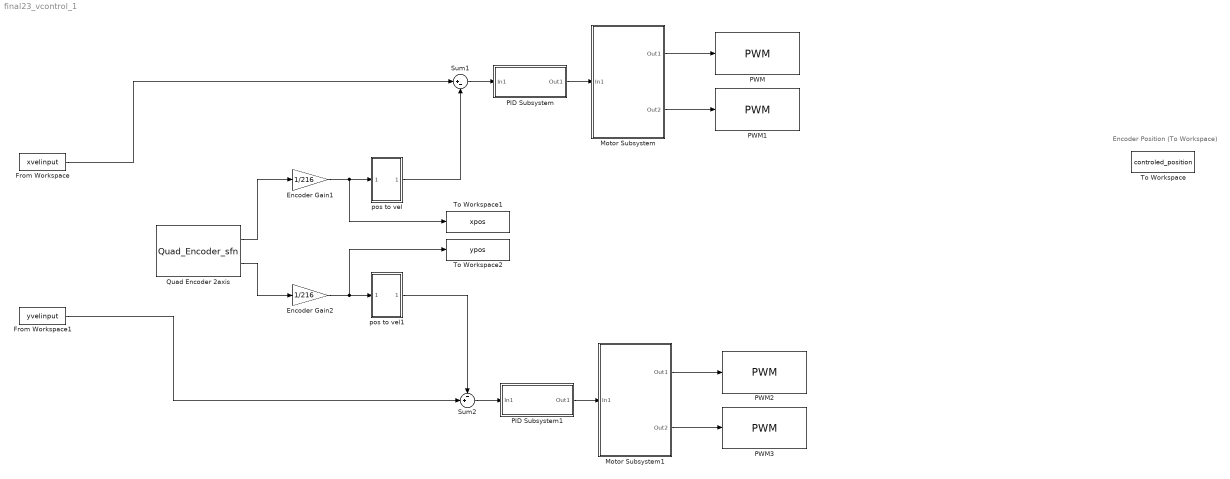
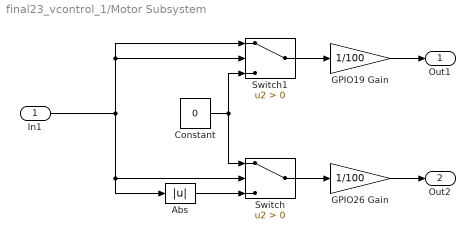
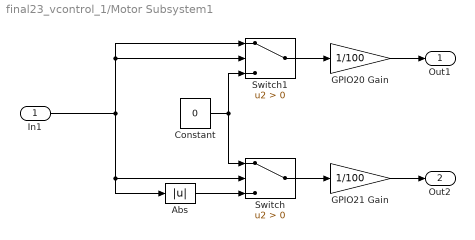
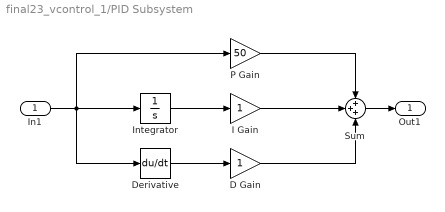
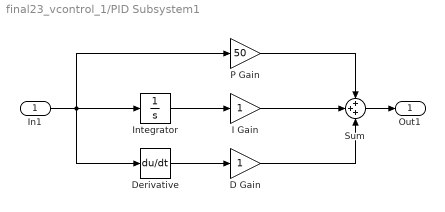
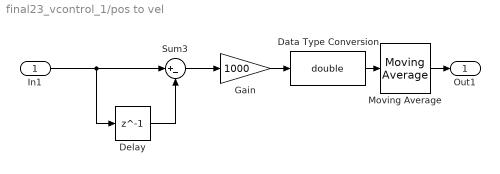
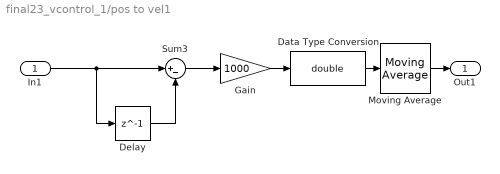
/*
 * final23_vcontrol_1.c
 *
 * Academic License - for use in teaching, academic research, and meeting
 * course requirements at degree granting institutions only.  Not for
 * government, commercial, or other organizational use.
 *
 * Code generation for model "final23_vcontrol_1".
 *
 * Model version              : 1.20
 * Simulink Coder version : 9.5 (R2021a) 14-Nov-2020
 * C source code generated on : Mon Dec  4 21:20:35 2023
 *
 * Target selection: ert.tlc
 * Note: GRT includes extra infrastructure and instrumentation for prototyping
 * Embedded hardware selection: ARM Compatible->ARM Cortex
 * Code generation objectives: Unspecified
 * Validation result: Not run
 */

#include "final23_vcontrol_1.h"
#include "final23_vcontrol_1_private.h"

/* Block signals (default storage) */
B_final23_vcontrol_1_T final23_vcontrol_1_B;

/* Continuous states */
X_final23_vcontrol_1_T final23_vcontrol_1_X;

/* Block states (default storage) */
DW_final23_vcontrol_1_T final23_vcontrol_1_DW;

/* Real-time model */
static RT_MODEL_final23_vcontrol_1_T final23_vcontrol_1_M_;
RT_MODEL_final23_vcontrol_1_T *const final23_vcontrol_1_M =
  &final23_vcontrol_1_M_;
real_T sMultiWord2Double(const uint64_T u1[], int32_T n1, int32_T e1)
{
  real_T y;
  uint64_T cb;
  uint64_T u1i;
  int32_T exp_0;
  int32_T i;
  y = 0.0;
  exp_0 = e1;
  if ((u1[n1 - 1] & 9223372036854775808ULL) != 0ULL) {
    cb = 1ULL;
    for (i = 0; i < n1; i++) {
      u1i = ~u1[i];
      cb += u1i;
      y -= ldexp((real_T)cb, exp_0);
      cb = (uint64_T)(cb < u1i);
      exp_0 += 64;
    }
  } else {
    for (i = 0; i < n1; i++) {
      y += ldexp((real_T)u1[i], exp_0);
      exp_0 += 64;
    }
  }

  return y;
}

void sMultiWordMul(const uint64_T u1[], int32_T n1, const uint64_T u2[], int32_T
                   n2, uint64_T y[], int32_T n)
{
  uint64_T a0;
  uint64_T a1;
  uint64_T b1;
  uint64_T cb;
  uint64_T cb1;
  uint64_T cb2;
  uint64_T u1i;
  uint64_T w01;
  uint64_T w10;
  uint64_T yk;
  int32_T i;
  int32_T j;
  int32_T k;
  int32_T ni;
  boolean_T isNegative1;
  boolean_T isNegative2;
  isNegative1 = ((u1[n1 - 1] & 9223372036854775808ULL) != 0ULL);
  isNegative2 = ((u2[n2 - 1] & 9223372036854775808ULL) != 0ULL);
  cb1 = 1ULL;

  /* Initialize output to zero */
  for (k = 0; k < n; k++) {
    y[k] = 0ULL;
  }

  for (i = 0; i < n1; i++) {
    cb = 0ULL;
    u1i = u1[i];
    if (isNegative1) {
      u1i = ~u1i + cb1;
      cb1 = (uint64_T)(u1i < cb1);
    }

    a1 = u1i >> 32U;
    a0 = u1i & 4294967295ULL;
    cb2 = 1ULL;
    ni = n - i;
    ni = n2 <= ni ? n2 : ni;
    k = i;
    for (j = 0; j < ni; j++) {
      u1i = u2[j];
      if (isNegative2) {
        u1i = ~u1i + cb2;
        cb2 = (uint64_T)(u1i < cb2);
      }

      b1 = u1i >> 32U;
      u1i &= 4294967295ULL;
      w10 = a1 * u1i;
      w01 = a0 * b1;
      yk = y[k] + cb;
      cb = (uint64_T)(yk < cb);
      u1i *= a0;
      yk += u1i;
      cb += (yk < u1i);
      u1i = w10 << 32U;
      yk += u1i;
      cb += (yk < u1i);
      u1i = w01 << 32U;
      yk += u1i;
      cb += (yk < u1i);
      y[k] = yk;
      cb += w10 >> 32U;
      cb += w01 >> 32U;
      cb += a1 * b1;
      k++;
    }

    if (k < n) {
      y[k] = cb;
    }
  }

  /* Apply sign */
  if (isNegative1 != isNegative2) {
    cb = 1ULL;
    for (k = 0; k < n; k++) {
      yk = ~y[k] + cb;
      y[k] = yk;
      cb = (uint64_T)(yk < cb);
    }
  }
}

/*
 * This function updates continuous states using the ODE3 fixed-step
 * solver algorithm
 */
static void rt_ertODEUpdateContinuousStates(RTWSolverInfo *si )
{
  /* Solver Matrices */
  static const real_T rt_ODE3_A[3] = {
    1.0/2.0, 3.0/4.0, 1.0
  };

  static const real_T rt_ODE3_B[3][3] = {
    { 1.0/2.0, 0.0, 0.0 },

    { 0.0, 3.0/4.0, 0.0 },

    { 2.0/9.0, 1.0/3.0, 4.0/9.0 }
  };

  time_T t = rtsiGetT(si);
  time_T tnew = rtsiGetSolverStopTime(si);
  time_T h = rtsiGetStepSize(si);
  real_T *x = rtsiGetContStates(si);
  ODE3_IntgData *id = (ODE3_IntgData *)rtsiGetSolverData(si);
  real_T *y = id->y;
  real_T *f0 = id->f[0];
  real_T *f1 = id->f[1];
  real_T *f2 = id->f[2];
  real_T hB[3];
  int_T i;
  int_T nXc = 2;
  rtsiSetSimTimeStep(si,MINOR_TIME_STEP);

  /* Save the state values at time t in y, we'll use x as ynew. */
  (void) memcpy(y, x,
                (uint_T)nXc*sizeof(real_T));

  /* Assumes that rtsiSetT and ModelOutputs are up-to-date */
  /* f0 = f(t,y) */
  rtsiSetdX(si, f0);
  final23_vcontrol_1_derivatives();

  /* f(:,2) = feval(odefile, t + hA(1), y + f*hB(:,1), args(:)(*)); */
  hB[0] = h * rt_ODE3_B[0][0];
  for (i = 0; i < nXc; i++) {
    x[i] = y[i] + (f0[i]*hB[0]);
  }

  rtsiSetT(si, t + h*rt_ODE3_A[0]);
  rtsiSetdX(si, f1);
  final23_vcontrol_1_step();
  final23_vcontrol_1_derivatives();

  /* f(:,3) = feval(odefile, t + hA(2), y + f*hB(:,2), args(:)(*)); */
  for (i = 0; i <= 1; i++) {
    hB[i] = h * rt_ODE3_B[1][i];
  }

  for (i = 0; i < nXc; i++) {
    x[i] = y[i] + (f0[i]*hB[0] + f1[i]*hB[1]);
  }

  rtsiSetT(si, t + h*rt_ODE3_A[1]);
  rtsiSetdX(si, f2);
  final23_vcontrol_1_step();
  final23_vcontrol_1_derivatives();

  /* tnew = t + hA(3);
     ynew = y + f*hB(:,3); */
  for (i = 0; i <= 2; i++) {
    hB[i] = h * rt_ODE3_B[2][i];
  }

  for (i = 0; i < nXc; i++) {
    x[i] = y[i] + (f0[i]*hB[0] + f1[i]*hB[1] + f2[i]*hB[2]);
  }

  rtsiSetT(si, tnew);
  rtsiSetSimTimeStep(si,MAJOR_TIME_STEP);
}

/*
 * System initialize for atomic system:
 *    synthesized block
 *    synthesized block
 */
void final23_vcon_MovingAverage_Init(DW_MovingAverage_final23_vcon_T *localDW)
{
  g_dsp_private_SlidingWindowAv_T *obj;
  int32_T i;

  /* InitializeConditions for MATLABSystem: '<S5>/Moving Average' */
  obj = localDW->obj.pStatistic;
  if (obj->isInitialized == 1) {
    obj->pCumSum = 0.0;
    for (i = 0; i < 19; i++) {
      obj->pCumSumRev[i] = 0.0;
    }

    obj->pCumRevIndex = 1.0;
  }

  /* End of InitializeConditions for MATLABSystem: '<S5>/Moving Average' */
}

/*
 * Start for atomic system:
 *    synthesized block
 *    synthesized block
 */
void final23_vco_MovingAverage_Start(DW_MovingAverage_final23_vcon_T *localDW)
{
  /* Start for MATLABSystem: '<S5>/Moving Average' */
  localDW->obj.matlabCodegenIsDeleted = true;
  localDW->obj.isInitialized = 0;
  localDW->obj.NumChannels = -1;
  localDW->obj.matlabCodegenIsDeleted = false;
  localDW->objisempty = true;
  localDW->obj.isSetupComplete = false;
  localDW->obj.isInitialized = 1;
  localDW->obj.NumChannels = 1;
  localDW->obj._pobj0.isInitialized = 0;
  localDW->obj.pStatistic = &localDW->obj._pobj0;
  localDW->obj.isSetupComplete = true;
  localDW->obj.TunablePropsChanged = false;
}

/*
 * Output and update for atomic system:
 *    synthesized block
 *    synthesized block
 */
void final23_vcontrol__MovingAverage(real_T rtu_0,
  B_MovingAverage_final23_vcont_T *localB, DW_MovingAverage_final23_vcon_T
  *localDW)
{
  g_dsp_private_SlidingWindowAv_T *obj;
  real_T csum;
  real_T cumRevIndex;
  real_T z;
  int32_T i;

  /* MATLABSystem: '<S5>/Moving Average' */
  if (localDW->obj.TunablePropsChanged) {
    localDW->obj.TunablePropsChanged = false;
  }

  obj = localDW->obj.pStatistic;
  if (obj->isInitialized != 1) {
    obj->isSetupComplete = false;
    obj->isInitialized = 1;
    obj->pCumSum = 0.0;
    for (i = 0; i < 19; i++) {
      obj->pCumSumRev[i] = 0.0;
    }

    obj->pCumRevIndex = 1.0;
    obj->isSetupComplete = true;
    obj->pCumSum = 0.0;
    for (i = 0; i < 19; i++) {
      obj->pCumSumRev[i] = 0.0;
    }

    obj->pCumRevIndex = 1.0;
  }

  cumRevIndex = obj->pCumRevIndex;
  csum = obj->pCumSum;
  for (i = 0; i < 19; i++) {
    localB->csumrev[i] = obj->pCumSumRev[i];
  }

  csum += rtu_0;
  z = localB->csumrev[(int32_T)cumRevIndex - 1] + csum;
  localB->csumrev[(int32_T)cumRevIndex - 1] = rtu_0;
  if (cumRevIndex != 19.0) {
    cumRevIndex++;
  } else {
    cumRevIndex = 1.0;
    csum = 0.0;
    for (i = 17; i >= 0; i--) {
      localB->csumrev[i] += localB->csumrev[i + 1];
    }
  }

  obj->pCumSum = csum;
  for (i = 0; i < 19; i++) {
    obj->pCumSumRev[i] = localB->csumrev[i];
  }

  obj->pCumRevIndex = cumRevIndex;

  /* MATLABSystem: '<S5>/Moving Average' */
  localB->MovingAverage = z / 20.0;
}

/*
 * Termination for atomic system:
 *    synthesized block
 *    synthesized block
 */
void final23_vcon_MovingAverage_Term(DW_MovingAverage_final23_vcon_T *localDW)
{
  g_dsp_private_SlidingWindowAv_T *obj;

  /* Terminate for MATLABSystem: '<S5>/Moving Average' */
  if (!localDW->obj.matlabCodegenIsDeleted) {
    localDW->obj.matlabCodegenIsDeleted = true;
    if ((localDW->obj.isInitialized == 1) && localDW->obj.isSetupComplete) {
      obj = localDW->obj.pStatistic;
      if (obj->isInitialized == 1) {
        obj->isInitialized = 2;
      }

      localDW->obj.NumChannels = -1;
    }
  }

  /* End of Terminate for MATLABSystem: '<S5>/Moving Average' */
}

/* Model step function */
void final23_vcontrol_1_step(void)
{
  /* local block i/o variables */
  real_T rtb_DataTypeConversion;
  real_T rtb_DataTypeConversion_a;
  if (rtmIsMajorTimeStep(final23_vcontrol_1_M)) {
    /* set solver stop time */
    if (!(final23_vcontrol_1_M->Timing.clockTick0+1)) {
      rtsiSetSolverStopTime(&final23_vcontrol_1_M->solverInfo,
                            ((final23_vcontrol_1_M->Timing.clockTickH0 + 1) *
        final23_vcontrol_1_M->Timing.stepSize0 * 4294967296.0));
    } else {
      rtsiSetSolverStopTime(&final23_vcontrol_1_M->solverInfo,
                            ((final23_vcontrol_1_M->Timing.clockTick0 + 1) *
        final23_vcontrol_1_M->Timing.stepSize0 +
        final23_vcontrol_1_M->Timing.clockTickH0 *
        final23_vcontrol_1_M->Timing.stepSize0 * 4294967296.0));
    }
  }                                    /* end MajorTimeStep */

  /* Update absolute time of base rate at minor time step */
  if (rtmIsMinorTimeStep(final23_vcontrol_1_M)) {
    final23_vcontrol_1_M->Timing.t[0] = rtsiGetT
      (&final23_vcontrol_1_M->solverInfo);
  }

  {
    real_T *lastU;
    if (rtmIsMajorTimeStep(final23_vcontrol_1_M)) {
      /* FromWorkspace: '<Root>/From Workspace' */
      {
        real_T *pDataValues = (real_T *)
          final23_vcontrol_1_DW.FromWorkspace_PWORK.DataPtr;
        real_T *pTimeValues = (real_T *)
          final23_vcontrol_1_DW.FromWorkspace_PWORK.TimePtr;
        int_T currTimeIndex =
          final23_vcontrol_1_DW.FromWorkspace_IWORK.PrevIndex;
        real_T t = (((final23_vcontrol_1_M->Timing.clockTick1+
                      final23_vcontrol_1_M->Timing.clockTickH1* 4294967296.0)) *
                    0.001);

        /* Get index */
        if (t <= pTimeValues[0]) {
          currTimeIndex = 0;
        } else if (t >= pTimeValues[1980]) {
          currTimeIndex = 1979;
        } else {
          if (t < pTimeValues[currTimeIndex]) {
            while (t < pTimeValues[currTimeIndex]) {
              currTimeIndex--;
            }
          } else {
            while (t >= pTimeValues[currTimeIndex + 1]) {
              currTimeIndex++;
            }
          }
        }

        final23_vcontrol_1_DW.FromWorkspace_IWORK.PrevIndex = currTimeIndex;

        /* Post output */
        {
          real_T t1 = pTimeValues[currTimeIndex];
          real_T t2 = pTimeValues[currTimeIndex + 1];
          if (t1 == t2) {
            if (t < t1) {
              final23_vcontrol_1_B.FromWorkspace = pDataValues[currTimeIndex];
            } else {
              final23_vcontrol_1_B.FromWorkspace = pDataValues[currTimeIndex + 1];
            }
          } else {
            real_T f1 = (t2 - t) / (t2 - t1);
            real_T f2 = 1.0 - f1;
            real_T d1;
            real_T d2;
            int_T TimeIndex = currTimeIndex;
            d1 = pDataValues[TimeIndex];
            d2 = pDataValues[TimeIndex + 1];
            final23_vcontrol_1_B.FromWorkspace = (real_T) rtInterpolate(d1, d2,
              f1, f2);
            pDataValues += 1981;
          }
        }
      }
    }

    /* S-Function (Quad_Encoder_sfn): '<Root>/Quad Encoder 2axis' */
    Quad_Encoder_sfn_Outputs_wrapper(&final23_vcontrol_1_B.QuadEncoder2axis_o1,
      &final23_vcontrol_1_B.QuadEncoder2axis_o2,
      &final23_vcontrol_1_DW.QuadEncoder2axis_DSTATE,
      &final23_vcontrol_1_P.QuadEncoder2axis_P1, 1,
      &final23_vcontrol_1_P.QuadEncoder2axis_P2, 1,
      &final23_vcontrol_1_P.QuadEncoder2axis_P3, 1,
      &final23_vcontrol_1_P.QuadEncoder2axis_P4, 1,
      &final23_vcontrol_1_P.QuadEncoder2axis_P5, 1,
      &final23_vcontrol_1_P.QuadEncoder2axis_P6, 1);

    /* Gain: '<Root>/Encoder Gain1' */
    final23_vcontrol_1_B.EncoderGain1 = (int64_T)
      final23_vcontrol_1_P.EncoderGain1_Gain *
      final23_vcontrol_1_B.QuadEncoder2axis_o1;
    if (rtmIsMajorTimeStep(final23_vcontrol_1_M)) {
      /* Delay: '<S5>/Delay' */
      final23_vcontrol_1_B.Delay = final23_vcontrol_1_DW.Delay_DSTATE;
    }

    /* Gain: '<S5>/Gain' incorporates:
     *  Delay: '<S5>/Delay'
     *  Gain: '<Root>/Encoder Gain1'
     *  Sum: '<S5>/Sum3'
     */
    final23_vcontrol_1_B.u = (uint64_T)final23_vcontrol_1_P.Gain_Gain;
    final23_vcontrol_1_B.u1 = (uint64_T)(final23_vcontrol_1_B.EncoderGain1 -
      final23_vcontrol_1_B.Delay);
    sMultiWordMul(&final23_vcontrol_1_B.u, 1, &final23_vcontrol_1_B.u1, 1,
                  &final23_vcontrol_1_B.r.chunks[0U], 2);

    /* DataTypeConversion: '<S5>/Data Type Conversion' */
    rtb_DataTypeConversion = sMultiWord2Double(&final23_vcontrol_1_B.r.chunks[0U],
      2, 0) * 4.0389678347315804E-28;
    final23_vcontrol__MovingAverage(rtb_DataTypeConversion,
      &final23_vcontrol_1_B.MovingAverage, &final23_vcontrol_1_DW.MovingAverage);

    /* Sum: '<Root>/Sum1' */
    final23_vcontrol_1_B.Sum1 = final23_vcontrol_1_B.FromWorkspace -
      final23_vcontrol_1_B.MovingAverage.MovingAverage;

    /* Derivative: '<S3>/Derivative' incorporates:
     *  Derivative: '<S4>/Derivative'
     */
    final23_vcontrol_1_B.Sum_d = final23_vcontrol_1_M->Timing.t[0];
    if ((final23_vcontrol_1_DW.TimeStampA >= final23_vcontrol_1_B.Sum_d) &&
        (final23_vcontrol_1_DW.TimeStampB >= final23_vcontrol_1_B.Sum_d)) {
      final23_vcontrol_1_B.Switch = 0.0;
    } else {
      final23_vcontrol_1_B.Switch = final23_vcontrol_1_DW.TimeStampA;
      lastU = &final23_vcontrol_1_DW.LastUAtTimeA;
      if (final23_vcontrol_1_DW.TimeStampA < final23_vcontrol_1_DW.TimeStampB) {
        if (final23_vcontrol_1_DW.TimeStampB < final23_vcontrol_1_B.Sum_d) {
          final23_vcontrol_1_B.Switch = final23_vcontrol_1_DW.TimeStampB;
          lastU = &final23_vcontrol_1_DW.LastUAtTimeB;
        }
      } else if (final23_vcontrol_1_DW.TimeStampA >= final23_vcontrol_1_B.Sum_d)
      {
        final23_vcontrol_1_B.Switch = final23_vcontrol_1_DW.TimeStampB;
        lastU = &final23_vcontrol_1_DW.LastUAtTimeB;
      }

      final23_vcontrol_1_B.Switch = (final23_vcontrol_1_B.Sum1 - *lastU) /
        (final23_vcontrol_1_B.Sum_d - final23_vcontrol_1_B.Switch);
    }

    /* End of Derivative: '<S3>/Derivative' */

    /* Sum: '<S3>/Sum' incorporates:
     *  Gain: '<S3>/D Gain'
     *  Gain: '<S3>/I Gain'
     *  Gain: '<S3>/P Gain'
     *  Integrator: '<S3>/Integrator'
     */
    final23_vcontrol_1_B.Sum = (final23_vcontrol_1_P.PGain_Gain *
      final23_vcontrol_1_B.Sum1 + final23_vcontrol_1_P.IGain_Gain *
      final23_vcontrol_1_X.Integrator_CSTATE) + final23_vcontrol_1_P.DGain_Gain *
      final23_vcontrol_1_B.Switch;

    /* Switch: '<S1>/Switch1' incorporates:
     *  Constant: '<S1>/Constant'
     */
    if (final23_vcontrol_1_B.Sum > final23_vcontrol_1_P.Switch1_Threshold) {
      final23_vcontrol_1_B.Switch = final23_vcontrol_1_B.Sum;
    } else {
      final23_vcontrol_1_B.Switch = final23_vcontrol_1_P.Constant_Value;
    }

    /* End of Switch: '<S1>/Switch1' */

    /* Gain: '<S1>/GPIO19 Gain' */
    final23_vcontrol_1_B.Switch *= final23_vcontrol_1_P.GPIO19Gain_Gain;

    /* MATLABSystem: '<Root>/PWM' */
    if (!(final23_vcontrol_1_B.Switch < 1.0)) {
      final23_vcontrol_1_B.Switch = 1.0;
    }

    if (!(final23_vcontrol_1_B.Switch > 0.0)) {
      final23_vcontrol_1_B.Switch = 0.0;
    }

    EXT_PWMBlock_setDutyCycle(final23_vcontrol_1_DW.obj_g.PinNumber,
      final23_vcontrol_1_B.Switch);

    /* End of MATLABSystem: '<Root>/PWM' */

    /* Switch: '<S1>/Switch' incorporates:
     *  Abs: '<S1>/Abs'
     *  Constant: '<S1>/Constant'
     */
    if (final23_vcontrol_1_B.Sum > final23_vcontrol_1_P.Switch_Threshold) {
      final23_vcontrol_1_B.Sum = final23_vcontrol_1_P.Constant_Value;
    } else {
      final23_vcontrol_1_B.Sum = fabs(final23_vcontrol_1_B.Sum);
    }

    /* End of Switch: '<S1>/Switch' */

    /* Gain: '<S1>/GPIO26 Gain' */
    final23_vcontrol_1_B.Switch = final23_vcontrol_1_P.GPIO26Gain_Gain *
      final23_vcontrol_1_B.Sum;

    /* MATLABSystem: '<Root>/PWM1' */
    if (!(final23_vcontrol_1_B.Switch < 1.0)) {
      final23_vcontrol_1_B.Switch = 1.0;
    }

    if (!(final23_vcontrol_1_B.Switch > 0.0)) {
      final23_vcontrol_1_B.Switch = 0.0;
    }

    EXT_PWMBlock_setDutyCycle(final23_vcontrol_1_DW.obj_e.PinNumber,
      final23_vcontrol_1_B.Switch);

    /* End of MATLABSystem: '<Root>/PWM1' */
    if (rtmIsMajorTimeStep(final23_vcontrol_1_M)) {
      /* Delay: '<S6>/Delay' */
      final23_vcontrol_1_B.Delay_j = final23_vcontrol_1_DW.Delay_DSTATE_e;
    }

    /* Gain: '<Root>/Encoder Gain2' */
    final23_vcontrol_1_B.EncoderGain2 = (int64_T)
      final23_vcontrol_1_P.EncoderGain2_Gain *
      final23_vcontrol_1_B.QuadEncoder2axis_o2;

    /* Gain: '<S6>/Gain' incorporates:
     *  Delay: '<S6>/Delay'
     *  Gain: '<Root>/Encoder Gain2'
     *  Sum: '<S6>/Sum3'
     */
    final23_vcontrol_1_B.u = (uint64_T)final23_vcontrol_1_P.Gain_Gain_a;
    final23_vcontrol_1_B.u1 = (uint64_T)(final23_vcontrol_1_B.EncoderGain2 -
      final23_vcontrol_1_B.Delay_j);
    sMultiWordMul(&final23_vcontrol_1_B.u, 1, &final23_vcontrol_1_B.u1, 1,
                  &final23_vcontrol_1_B.r1.chunks[0U], 2);

    /* DataTypeConversion: '<S6>/Data Type Conversion' */
    rtb_DataTypeConversion_a = sMultiWord2Double
      (&final23_vcontrol_1_B.r1.chunks[0U], 2, 0) * 4.0389678347315804E-28;
    final23_vcontrol__MovingAverage(rtb_DataTypeConversion_a,
      &final23_vcontrol_1_B.MovingAverage_p,
      &final23_vcontrol_1_DW.MovingAverage_p);
    if (rtmIsMajorTimeStep(final23_vcontrol_1_M)) {
      /* FromWorkspace: '<Root>/From Workspace1' */
      {
        real_T *pDataValues = (real_T *)
          final23_vcontrol_1_DW.FromWorkspace1_PWORK.DataPtr;
        real_T *pTimeValues = (real_T *)
          final23_vcontrol_1_DW.FromWorkspace1_PWORK.TimePtr;
        int_T currTimeIndex =
          final23_vcontrol_1_DW.FromWorkspace1_IWORK.PrevIndex;
        real_T t = (((final23_vcontrol_1_M->Timing.clockTick1+
                      final23_vcontrol_1_M->Timing.clockTickH1* 4294967296.0)) *
                    0.001);

        /* Get index */
        if (t <= pTimeValues[0]) {
          currTimeIndex = 0;
        } else if (t >= pTimeValues[1980]) {
          currTimeIndex = 1979;
        } else {
          if (t < pTimeValues[currTimeIndex]) {
            while (t < pTimeValues[currTimeIndex]) {
              currTimeIndex--;
            }
          } else {
            while (t >= pTimeValues[currTimeIndex + 1]) {
              currTimeIndex++;
            }
          }
        }

        final23_vcontrol_1_DW.FromWorkspace1_IWORK.PrevIndex = currTimeIndex;

        /* Post output */
        {
          real_T t1 = pTimeValues[currTimeIndex];
          real_T t2 = pTimeValues[currTimeIndex + 1];
          if (t1 == t2) {
            if (t < t1) {
              final23_vcontrol_1_B.FromWorkspace1 = pDataValues[currTimeIndex];
            } else {
              final23_vcontrol_1_B.FromWorkspace1 = pDataValues[currTimeIndex +
                1];
            }
          } else {
            real_T f1 = (t2 - t) / (t2 - t1);
            real_T f2 = 1.0 - f1;
            real_T d1;
            real_T d2;
            int_T TimeIndex = currTimeIndex;
            d1 = pDataValues[TimeIndex];
            d2 = pDataValues[TimeIndex + 1];
            final23_vcontrol_1_B.FromWorkspace1 = (real_T) rtInterpolate(d1, d2,
              f1, f2);
            pDataValues += 1981;
          }
        }
      }
    }

    /* Sum: '<Root>/Sum2' */
    final23_vcontrol_1_B.Sum2 = final23_vcontrol_1_B.FromWorkspace1 -
      final23_vcontrol_1_B.MovingAverage_p.MovingAverage;

    /* Derivative: '<S4>/Derivative' */
    if ((final23_vcontrol_1_DW.TimeStampA_a >= final23_vcontrol_1_B.Sum_d) &&
        (final23_vcontrol_1_DW.TimeStampB_o >= final23_vcontrol_1_B.Sum_d)) {
      final23_vcontrol_1_B.Switch = 0.0;
    } else {
      final23_vcontrol_1_B.Switch = final23_vcontrol_1_DW.TimeStampA_a;
      lastU = &final23_vcontrol_1_DW.LastUAtTimeA_i;
      if (final23_vcontrol_1_DW.TimeStampA_a <
          final23_vcontrol_1_DW.TimeStampB_o) {
        if (final23_vcontrol_1_DW.TimeStampB_o < final23_vcontrol_1_B.Sum_d) {
          final23_vcontrol_1_B.Switch = final23_vcontrol_1_DW.TimeStampB_o;
          lastU = &final23_vcontrol_1_DW.LastUAtTimeB_m;
        }
      } else if (final23_vcontrol_1_DW.TimeStampA_a >=
                 final23_vcontrol_1_B.Sum_d) {
        final23_vcontrol_1_B.Switch = final23_vcontrol_1_DW.TimeStampB_o;
        lastU = &final23_vcontrol_1_DW.LastUAtTimeB_m;
      }

      final23_vcontrol_1_B.Switch = (final23_vcontrol_1_B.Sum2 - *lastU) /
        (final23_vcontrol_1_B.Sum_d - final23_vcontrol_1_B.Switch);
    }

    /* Sum: '<S4>/Sum' incorporates:
     *  Gain: '<S4>/D Gain'
     *  Gain: '<S4>/I Gain'
     *  Gain: '<S4>/P Gain'
     *  Integrator: '<S4>/Integrator'
     */
    final23_vcontrol_1_B.Sum_d = (final23_vcontrol_1_P.PGain_Gain_i *
      final23_vcontrol_1_B.Sum2 + final23_vcontrol_1_P.IGain_Gain_j *
      final23_vcontrol_1_X.Integrator_CSTATE_l) +
      final23_vcontrol_1_P.DGain_Gain_h * final23_vcontrol_1_B.Switch;

    /* Switch: '<S2>/Switch1' incorporates:
     *  Constant: '<S2>/Constant'
     */
    if (final23_vcontrol_1_B.Sum_d > final23_vcontrol_1_P.Switch1_Threshold_c) {
      final23_vcontrol_1_B.Switch = final23_vcontrol_1_B.Sum_d;
    } else {
      final23_vcontrol_1_B.Switch = final23_vcontrol_1_P.Constant_Value_e;
    }

    /* End of Switch: '<S2>/Switch1' */

    /* Gain: '<S2>/GPIO20 Gain' */
    final23_vcontrol_1_B.Switch *= final23_vcontrol_1_P.GPIO20Gain_Gain;

    /* MATLABSystem: '<Root>/PWM2' */
    if (!(final23_vcontrol_1_B.Switch < 1.0)) {
      final23_vcontrol_1_B.Switch = 1.0;
    }

    if (!(final23_vcontrol_1_B.Switch > 0.0)) {
      final23_vcontrol_1_B.Switch = 0.0;
    }

    EXT_PWMBlock_setDutyCycle(final23_vcontrol_1_DW.obj_p.PinNumber,
      final23_vcontrol_1_B.Switch);

    /* End of MATLABSystem: '<Root>/PWM2' */

    /* Switch: '<S2>/Switch' incorporates:
     *  Abs: '<S2>/Abs'
     *  Constant: '<S2>/Constant'
     */
    if (final23_vcontrol_1_B.Sum_d > final23_vcontrol_1_P.Switch_Threshold_m) {
      final23_vcontrol_1_B.Sum_d = final23_vcontrol_1_P.Constant_Value_e;
    } else {
      final23_vcontrol_1_B.Sum_d = fabs(final23_vcontrol_1_B.Sum_d);
    }

    /* End of Switch: '<S2>/Switch' */

    /* Gain: '<S2>/GPIO21 Gain' */
    final23_vcontrol_1_B.Switch = final23_vcontrol_1_P.GPIO21Gain_Gain *
      final23_vcontrol_1_B.Sum_d;

    /* MATLABSystem: '<Root>/PWM3' */
    if (!(final23_vcontrol_1_B.Switch < 1.0)) {
      final23_vcontrol_1_B.Switch = 1.0;
    }

    if (!(final23_vcontrol_1_B.Switch > 0.0)) {
      final23_vcontrol_1_B.Switch = 0.0;
    }

    EXT_PWMBlock_setDutyCycle(final23_vcontrol_1_DW.obj.PinNumber,
      final23_vcontrol_1_B.Switch);

    /* End of MATLABSystem: '<Root>/PWM3' */
    if (rtmIsMajorTimeStep(final23_vcontrol_1_M)) {
    }
  }

  if (rtmIsMajorTimeStep(final23_vcontrol_1_M)) {
    real_T *lastU;

    /* Update for S-Function (Quad_Encoder_sfn): '<Root>/Quad Encoder 2axis' */

    /* S-Function "Quad_Encoder_sfn_wrapper" Block: <Root>/Quad Encoder 2axis */
    Quad_Encoder_sfn_Update_wrapper(&final23_vcontrol_1_B.QuadEncoder2axis_o1,
      &final23_vcontrol_1_B.QuadEncoder2axis_o2,
      &final23_vcontrol_1_DW.QuadEncoder2axis_DSTATE,
      &final23_vcontrol_1_P.QuadEncoder2axis_P1, 1,
      &final23_vcontrol_1_P.QuadEncoder2axis_P2, 1,
      &final23_vcontrol_1_P.QuadEncoder2axis_P3, 1,
      &final23_vcontrol_1_P.QuadEncoder2axis_P4, 1,
      &final23_vcontrol_1_P.QuadEncoder2axis_P5, 1,
      &final23_vcontrol_1_P.QuadEncoder2axis_P6, 1);
    if (rtmIsMajorTimeStep(final23_vcontrol_1_M)) {
      /* Update for Delay: '<S5>/Delay' incorporates:
       *  Gain: '<Root>/Encoder Gain1'
       */
      final23_vcontrol_1_DW.Delay_DSTATE = final23_vcontrol_1_B.EncoderGain1;
    }

    /* Update for Derivative: '<S3>/Derivative' */
    if (final23_vcontrol_1_DW.TimeStampA == (rtInf)) {
      final23_vcontrol_1_DW.TimeStampA = final23_vcontrol_1_M->Timing.t[0];
      lastU = &final23_vcontrol_1_DW.LastUAtTimeA;
    } else if (final23_vcontrol_1_DW.TimeStampB == (rtInf)) {
      final23_vcontrol_1_DW.TimeStampB = final23_vcontrol_1_M->Timing.t[0];
      lastU = &final23_vcontrol_1_DW.LastUAtTimeB;
    } else if (final23_vcontrol_1_DW.TimeStampA <
               final23_vcontrol_1_DW.TimeStampB) {
      final23_vcontrol_1_DW.TimeStampA = final23_vcontrol_1_M->Timing.t[0];
      lastU = &final23_vcontrol_1_DW.LastUAtTimeA;
    } else {
      final23_vcontrol_1_DW.TimeStampB = final23_vcontrol_1_M->Timing.t[0];
      lastU = &final23_vcontrol_1_DW.LastUAtTimeB;
    }

    *lastU = final23_vcontrol_1_B.Sum1;

    /* End of Update for Derivative: '<S3>/Derivative' */
    if (rtmIsMajorTimeStep(final23_vcontrol_1_M)) {
      /* Update for Delay: '<S6>/Delay' incorporates:
       *  Gain: '<Root>/Encoder Gain2'
       */
      final23_vcontrol_1_DW.Delay_DSTATE_e = final23_vcontrol_1_B.EncoderGain2;
    }

    /* Update for Derivative: '<S4>/Derivative' */
    if (final23_vcontrol_1_DW.TimeStampA_a == (rtInf)) {
      final23_vcontrol_1_DW.TimeStampA_a = final23_vcontrol_1_M->Timing.t[0];
      lastU = &final23_vcontrol_1_DW.LastUAtTimeA_i;
    } else if (final23_vcontrol_1_DW.TimeStampB_o == (rtInf)) {
      final23_vcontrol_1_DW.TimeStampB_o = final23_vcontrol_1_M->Timing.t[0];
      lastU = &final23_vcontrol_1_DW.LastUAtTimeB_m;
    } else if (final23_vcontrol_1_DW.TimeStampA_a <
               final23_vcontrol_1_DW.TimeStampB_o) {
      final23_vcontrol_1_DW.TimeStampA_a = final23_vcontrol_1_M->Timing.t[0];
      lastU = &final23_vcontrol_1_DW.LastUAtTimeA_i;
    } else {
      final23_vcontrol_1_DW.TimeStampB_o = final23_vcontrol_1_M->Timing.t[0];
      lastU = &final23_vcontrol_1_DW.LastUAtTimeB_m;
    }

    *lastU = final23_vcontrol_1_B.Sum2;

    /* End of Update for Derivative: '<S4>/Derivative' */

    /* External mode */
    rtExtModeUploadCheckTrigger(2);

    {                                  /* Sample time: [0.0s, 0.0s] */
      rtExtModeUpload(0, (real_T)final23_vcontrol_1_M->Timing.t[0]);
    }

    if (rtmIsMajorTimeStep(final23_vcontrol_1_M)) {/* Sample time: [0.001s, 0.0s] */
      rtExtModeUpload(1, (real_T)(((final23_vcontrol_1_M->Timing.clockTick1+
        final23_vcontrol_1_M->Timing.clockTickH1* 4294967296.0)) * 0.001));
    }
  }                                    /* end MajorTimeStep */

  if (rtmIsMajorTimeStep(final23_vcontrol_1_M)) {
    /* signal main to stop simulation */
    {                                  /* Sample time: [0.0s, 0.0s] */
      if ((rtmGetTFinal(final23_vcontrol_1_M)!=-1) &&
          !((rtmGetTFinal(final23_vcontrol_1_M)-
             (((final23_vcontrol_1_M->Timing.clockTick1+
                final23_vcontrol_1_M->Timing.clockTickH1* 4294967296.0)) * 0.001))
            > (((final23_vcontrol_1_M->Timing.clockTick1+
                 final23_vcontrol_1_M->Timing.clockTickH1* 4294967296.0)) *
               0.001) * (DBL_EPSILON))) {
        rtmSetErrorStatus(final23_vcontrol_1_M, "Simulation finished");
      }

      if (rtmGetStopRequested(final23_vcontrol_1_M)) {
        rtmSetErrorStatus(final23_vcontrol_1_M, "Simulation finished");
      }
    }

    rt_ertODEUpdateContinuousStates(&final23_vcontrol_1_M->solverInfo);

    /* Update absolute time for base rate */
    /* The "clockTick0" counts the number of times the code of this task has
     * been executed. The absolute time is the multiplication of "clockTick0"
     * and "Timing.stepSize0". Size of "clockTick0" ensures timer will not
     * overflow during the application lifespan selected.
     * Timer of this task consists of two 32 bit unsigned integers.
     * The two integers represent the low bits Timing.clockTick0 and the high bits
     * Timing.clockTickH0. When the low bit overflows to 0, the high bits increment.
     */
    if (!(++final23_vcontrol_1_M->Timing.clockTick0)) {
      ++final23_vcontrol_1_M->Timing.clockTickH0;
    }

    final23_vcontrol_1_M->Timing.t[0] = rtsiGetSolverStopTime
      (&final23_vcontrol_1_M->solverInfo);

    {
      /* Update absolute timer for sample time: [0.001s, 0.0s] */
      /* The "clockTick1" counts the number of times the code of this task has
       * been executed. The resolution of this integer timer is 0.001, which is the step size
       * of the task. Size of "clockTick1" ensures timer will not overflow during the
       * application lifespan selected.
       * Timer of this task consists of two 32 bit unsigned integers.
       * The two integers represent the low bits Timing.clockTick1 and the high bits
       * Timing.clockTickH1. When the low bit overflows to 0, the high bits increment.
       */
      final23_vcontrol_1_M->Timing.clockTick1++;
      if (!final23_vcontrol_1_M->Timing.clockTick1) {
        final23_vcontrol_1_M->Timing.clockTickH1++;
      }
    }
  }                                    /* end MajorTimeStep */
}
